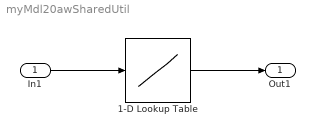
/*
 * File: myMdl20awSharedUtil.c
 *
 * Code generated for Simulink model 'myMdl20awSharedUtil'.
 *
 * Model version                  : 1.1
 * Simulink Coder version         : 9.3 (R2020a) 18-Nov-2019
 * C/C++ source code generated on : Fri Apr 19 11:33:03 2024
 *
 * Target selection: ert.tlc
 * Embedded hardware selection: Intel->x86-64 (Windows64)
 * Code generation objectives:
 *    1. Execution efficiency
 *    2. Traceability
 * Validation result: Not run
 */

#include "myMdl20awSharedUtil.h"
#include "look1_binlx.h"

/* External inputs (root inport signals with default storage) */
ExtU rtU;

/* External outputs (root outports fed by signals with default storage) */
ExtY rtY;
extern const real_T rtCP_pooled_5zSyEh5xujz7[11];
extern const real_T rtCP_pooled_P4HT5BbFT2LX[11];

#define rtCP_uDLookupTable_tableData   rtCP_pooled_5zSyEh5xujz7  /* Expression: tanh([-5:5])
                                                                  * Referenced by: '<Root>/1-D Lookup Table'
                                                                  */
#define rtCP_uDLookupTable_bp01Data    rtCP_pooled_P4HT5BbFT2LX  /* Expression: [-5:5]
                                                                  * Referenced by: '<Root>/1-D Lookup Table'
                                                                  */

/* Model step function */
void myMdl20awSharedUtil_step(void)
{
  /* Outport: '<Root>/Out1' incorporates:
   *  Inport: '<Root>/In1'
   *  Lookup_n-D: '<Root>/1-D Lookup Table'
   */
  rtY.Out1 = look1_binlx(rtU.In1, rtCP_uDLookupTable_bp01Data,
    rtCP_uDLookupTable_tableData, 10U);
}
